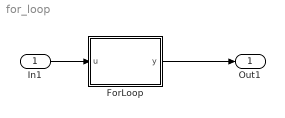
== matlab function for_loop/ForLoop ==
function y = fcn(u)
y = u;
for i = single(0:1000000-1)
    y = i*2+i^2;
end

/*
 * Academic License - for use in teaching, academic research, and meeting
 * course requirements at degree granting institutions only.  Not for
 * government, commercial, or other organizational use.
 *
 * File: for_loop.c
 *
 * Code generated for Simulink model 'for_loop'.
 *
 * Model version                  : 1.66
 * Simulink Coder version         : 8.8 (R2015a) 09-Feb-2015
 * C/C++ source code generated on : Mon Aug 10 14:10:45 2015
 *
 * Target selection: ert.tlc
 * Embedded hardware selection: Generic->32-bit Embedded Processor
 * Code generation objectives:
 *    1. Safety precaution
 *    2. MISRA-C:2004 guidelines
 *    3. RAM efficiency
 *    4. ROM efficiency
 * Validation result: Not run
 */

#include "for_loop.h"
#include "for_loop_private.h"

/* Model step function */
void for_loop_step(RT_MODEL_for_loop_T *const for_loop_M, ExtU_for_loop_T
                   *for_loop_U, ExtY_for_loop_T *for_loop_Y)
{
  real32_T rtb_y;
  int32_T i;

  /* MATLAB Function: '<Root>/ForLoop' incorporates:
   *  Inport: '<Root>/In1'
   */
  /* MATLAB Function 'ForLoop': '<S1>:1' */
  /* '<S1>:1:2' */
  rtb_y = for_loop_U->In1;

  /* '<S1>:1:3' */
  for (i = 0; i < 1000000; i++) {
    /* '<S1>:1:3' */
    /* '<S1>:1:4' */
    rtb_y = (((real32_T)i) * 2.0F) + (((real32_T)i) * ((real32_T)i));

    /* '<S1>:1:3' */
  }

  /* End of MATLAB Function: '<Root>/ForLoop' */

  /* Outport: '<Root>/Out1' */
  for_loop_Y->Out1 = rtb_y;
  UNUSED_PARAMETER(for_loop_M);
}
